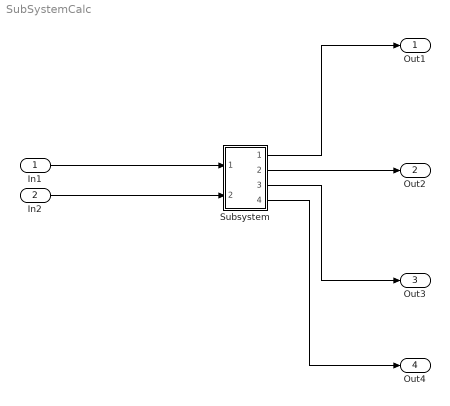
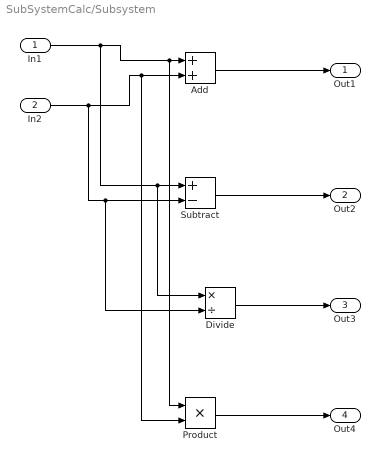
/*
 * File: SubSystemCalc.c
 *
 * Code generated for Simulink model 'SubSystemCalc'.
 *
 * Model version                  : 1.1
 * Simulink Coder version         : 9.0 (R2018b) 24-May-2018
 * C/C++ source code generated on : Sat Apr  2 18:13:12 2022
 *
 * Target selection: ert.tlc
 * Embedded hardware selection: Intel->x86-64 (Windows64)
 * Code generation objectives: Unspecified
 * Validation result: Not run
 */

#include "SubSystemCalc.h"
#include "SubSystemCalc_private.h"

/* External inputs (root inport signals with default storage) */
ExtU_SubSystemCalc_T SubSystemCalc_U;

/* External outputs (root outports fed by signals with default storage) */
ExtY_SubSystemCalc_T SubSystemCalc_Y;

/* Real-time model */
RT_MODEL_SubSystemCalc_T SubSystemCalc_M_;
RT_MODEL_SubSystemCalc_T *const SubSystemCalc_M = &SubSystemCalc_M_;

/* Model step function */
void SubSystemCalc_step(void)
{
  /* Outport: '<Root>/Out1' incorporates:
   *  Inport: '<Root>/In1'
   *  Inport: '<Root>/In2'
   *  Sum: '<S1>/Add'
   */
  SubSystemCalc_Y.Out1 = SubSystemCalc_U.In1 + SubSystemCalc_U.In2;

  /* Outport: '<Root>/Out2' incorporates:
   *  Inport: '<Root>/In1'
   *  Inport: '<Root>/In2'
   *  Sum: '<S1>/Subtract'
   */
  SubSystemCalc_Y.Out2 = SubSystemCalc_U.In1 - SubSystemCalc_U.In2;

  /* Outport: '<Root>/Out3' incorporates:
   *  Inport: '<Root>/In1'
   *  Inport: '<Root>/In2'
   *  Product: '<S1>/Divide'
   */
  SubSystemCalc_Y.Out3 = SubSystemCalc_U.In1 / SubSystemCalc_U.In2;

  /* Outport: '<Root>/Out4' incorporates:
   *  Inport: '<Root>/In1'
   *  Inport: '<Root>/In2'
   *  Product: '<S1>/Product'
   */
  SubSystemCalc_Y.Out4 = SubSystemCalc_U.In1 * SubSystemCalc_U.In2;
}
